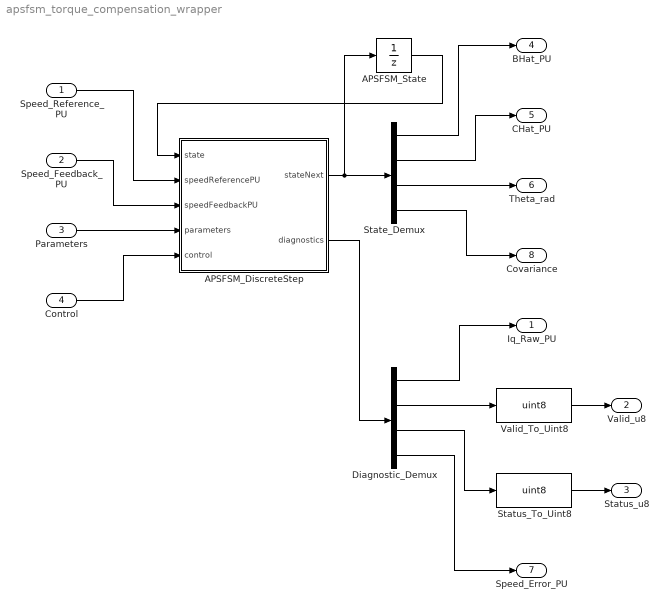
== matlab function apsfsm_torque_compensation_wrapper/APSFSM_DiscreteStep ==
function [stateNext, diagnostics] = APSFSM_DiscreteStep(state, speedReferencePU, speedFeedbackPU, parameters, control)
%#codegen
[stateNext, diagnostics] = apsfsmTorqueCompensationStep(state, speedReferencePU, speedFeedbackPU, parameters, control);
end

/*
 * Academic License - for use in teaching, academic research, and meeting
 * course requirements at degree granting institutions only.  Not for
 * government, commercial, or other organizational use.
 *
 * File: apsfsm_torque_compensation_wrapper.c
 *
 * Code generated for Simulink model 'apsfsm_torque_compensation_wrapper'.
 *
 * Model version                  : 1.2
 * Simulink Coder version         : 26.1 (R2026a) 20-Nov-2025
 * C/C++ source code generated on : Thu Aug 27 18:26:27 2026
 *
 * Target selection: ert.tlc
 * Embedded hardware selection: ARM Compatible->ARM Cortex
 * Code generation objectives: Unspecified
 * Validation result: Not run
 */

#include "apsfsm_torque_compensation_wrapper.h"
#include "rt_nonfinite.h"
#include <math.h>
#include "rtwtypes.h"

/* Block states (default storage) */
DW_apsfsm_torque_compensation_wrapper_T apsfsm_torque_compensation_wrapper_DW;

/* External inputs (root inport signals with default storage) */
ExtU_apsfsm_torque_compensation_wrapper_T apsfsm_torque_compensation_wrapper_U;

/* External outputs (root outports fed by signals with default storage) */
ExtY_apsfsm_torque_compensation_wrapper_T apsfsm_torque_compensation_wrapper_Y;

/* Real-time model */
static RT_MODEL_apsfsm_torque_compensation_wrapper_T
  apsfsm_torque_compensation_wrapper_M_;
RT_MODEL_apsfsm_torque_compensation_wrapper_T *const
  apsfsm_torque_compensation_wrapper_M = &apsfsm_torque_compensation_wrapper_M_;

/* Model step function */
void apsfsm_torque_compensation_wrapper_step(void)
{
  int32_T rtb_diagnostics_idx_1;
  int32_T rtb_diagnostics_idx_2;
  real32_T candidateMagnitude;
  real32_T coefficientMagnitude;
  real32_T covariance;
  real32_T iqRaw;
  real32_T minimumCovariance;
  real32_T phase;
  real32_T resetState_idx_0;
  real32_T resetState_idx_1;
  real32_T resetState_idx_2;
  real32_T resetState_idx_3;
  real32_T thetaMech;
  boolean_T controlDiscrete;

  /* MATLAB Function: '<Root>/APSFSM_DiscreteStep' */
  resetState_idx_0 = 0.0F;

  /* Outport: '<Root>/Iq_Raw_PU' incorporates:
   *  MATLAB Function: '<Root>/APSFSM_DiscreteStep'
   */
  apsfsm_torque_compensation_wrapper_Y.Iq_Raw_PU = 0.0F;

  /* MATLAB Function: '<Root>/APSFSM_DiscreteStep' */
  resetState_idx_1 = 0.0F;
  rtb_diagnostics_idx_1 = 0;
  resetState_idx_2 = 0.0F;
  rtb_diagnostics_idx_2 = 0;
  resetState_idx_3 = 0.0F;

  /* Outport: '<Root>/Speed_Error_PU' incorporates:
   *  MATLAB Function: '<Root>/APSFSM_DiscreteStep'
   */
  apsfsm_torque_compensation_wrapper_Y.Speed_Error_PU = 0.0F;

  /* MATLAB Function: '<Root>/APSFSM_DiscreteStep' incorporates:
   *  Inport: '<Root>/Control'
   *  Inport: '<Root>/Parameters'
   *  Inport: '<Root>/Speed_Feedback_PU'
   *  Inport: '<Root>/Speed_Reference_PU'
   *  UnitDelay: '<Root>/APSFSM_State'
   */
  if (rtIsInfF(apsfsm_torque_compensation_wrapper_U.Parameters[0]) || rtIsNaNF
      (apsfsm_torque_compensation_wrapper_U.Parameters[0]) || (rtIsInfF
       (apsfsm_torque_compensation_wrapper_U.Parameters[1]) || rtIsNaNF
       (apsfsm_torque_compensation_wrapper_U.Parameters[1]) || (rtIsInfF
        (apsfsm_torque_compensation_wrapper_U.Parameters[2]) || rtIsNaNF
        (apsfsm_torque_compensation_wrapper_U.Parameters[2]) || (rtIsInfF
         (apsfsm_torque_compensation_wrapper_U.Parameters[3]) || rtIsNaNF
         (apsfsm_torque_compensation_wrapper_U.Parameters[3]) || (rtIsInfF
          (apsfsm_torque_compensation_wrapper_U.Parameters[4]) || rtIsNaNF
          (apsfsm_torque_compensation_wrapper_U.Parameters[4]))))) ||
      (!(apsfsm_torque_compensation_wrapper_U.Parameters[0] > 0.0F) ||
       (!(apsfsm_torque_compensation_wrapper_U.Parameters[1] > 0.0F) ||
        (!(apsfsm_torque_compensation_wrapper_U.Parameters[3] > 0.0F) ||
         (!(apsfsm_torque_compensation_wrapper_U.Parameters[3] < 1.0F) ||
          !(apsfsm_torque_compensation_wrapper_U.Parameters[4] > 0.0F)))))) {
    rtb_diagnostics_idx_2 = 4;
  } else {
    minimumCovariance = 0.5F * apsfsm_torque_compensation_wrapper_U.Parameters[1]
      * apsfsm_torque_compensation_wrapper_U.Parameters[1];
    if (rtIsInfF(minimumCovariance) || rtIsNaNF(minimumCovariance)) {
      rtb_diagnostics_idx_2 = 4;
    } else if (minimumCovariance <= 0.0F) {
      rtb_diagnostics_idx_2 = 4;
    } else {
      resetState_idx_3 = minimumCovariance;
      if ((apsfsm_torque_compensation_wrapper_U.Control[0] == 0.0F) ||
          (apsfsm_torque_compensation_wrapper_U.Control[0] == 1.0F)) {
        if ((apsfsm_torque_compensation_wrapper_U.Control[1] == 0.0F) ||
            (apsfsm_torque_compensation_wrapper_U.Control[1] == 1.0F)) {
          controlDiscrete = ((apsfsm_torque_compensation_wrapper_U.Control[2] ==
                              0.0F) ||
                             (apsfsm_torque_compensation_wrapper_U.Control[2] ==
                              1.0F));
        } else {
          controlDiscrete = false;
        }
      } else {
        controlDiscrete = false;
      }

      if (rtIsInfF(apsfsm_torque_compensation_wrapper_U.Control[0]) || rtIsNaNF
          (apsfsm_torque_compensation_wrapper_U.Control[0]) || (rtIsInfF
           (apsfsm_torque_compensation_wrapper_U.Control[1]) || rtIsNaNF
           (apsfsm_torque_compensation_wrapper_U.Control[1]) || (rtIsInfF
            (apsfsm_torque_compensation_wrapper_U.Control[2]) || rtIsNaNF
            (apsfsm_torque_compensation_wrapper_U.Control[2]))) ||
          !controlDiscrete) {
        rtb_diagnostics_idx_2 = 5;
      } else if (rtIsInfF
                 (apsfsm_torque_compensation_wrapper_U.Speed_Reference_PU) ||
                 rtIsNaNF
                 (apsfsm_torque_compensation_wrapper_U.Speed_Reference_PU)) {
        rtb_diagnostics_idx_2 = 5;
      } else if (rtIsInfF(apsfsm_torque_compensation_wrapper_U.Speed_Feedback_PU)
                 || rtIsNaNF
                 (apsfsm_torque_compensation_wrapper_U.Speed_Feedback_PU)) {
        rtb_diagnostics_idx_2 = 5;
      } else if (!(apsfsm_torque_compensation_wrapper_U.Control[2] == 1.0F) &&
                 !(apsfsm_torque_compensation_wrapper_U.Control[0] == 0.0F)) {
        covariance = apsfsm_torque_compensation_wrapper_DW.APSFSM_State_DSTATE[3];
        controlDiscrete = (!rtIsInfF
                           (apsfsm_torque_compensation_wrapper_DW.APSFSM_State_DSTATE
                            [0]) && !rtIsNaNF
                           (apsfsm_torque_compensation_wrapper_DW.APSFSM_State_DSTATE
                            [0]) && (!rtIsInfF
          (apsfsm_torque_compensation_wrapper_DW.APSFSM_State_DSTATE[1]) &&
          !rtIsNaNF(apsfsm_torque_compensation_wrapper_DW.APSFSM_State_DSTATE[1])
          && (!rtIsInfF
              (apsfsm_torque_compensation_wrapper_DW.APSFSM_State_DSTATE[2]) &&
              !rtIsNaNF
              (apsfsm_torque_compensation_wrapper_DW.APSFSM_State_DSTATE[2]) &&
              (!rtIsInfF
               (apsfsm_torque_compensation_wrapper_DW.APSFSM_State_DSTATE[3]) &&
               !rtIsNaNF
               (apsfsm_torque_compensation_wrapper_DW.APSFSM_State_DSTATE[3])))));
        if (controlDiscrete &&
            (apsfsm_torque_compensation_wrapper_DW.APSFSM_State_DSTATE[3] >=
             0.0F) &&
            (apsfsm_torque_compensation_wrapper_DW.APSFSM_State_DSTATE[3] <
             minimumCovariance)) {
          covariance = minimumCovariance;
        }

        coefficientMagnitude = sqrtf
          (apsfsm_torque_compensation_wrapper_DW.APSFSM_State_DSTATE[0] *
           apsfsm_torque_compensation_wrapper_DW.APSFSM_State_DSTATE[0] +
           apsfsm_torque_compensation_wrapper_DW.APSFSM_State_DSTATE[1] *
           apsfsm_torque_compensation_wrapper_DW.APSFSM_State_DSTATE[1]);
        if (!controlDiscrete || (!(covariance >= minimumCovariance) || (rtIsInfF
              (coefficientMagnitude) || rtIsNaNF(coefficientMagnitude) ||
              !(coefficientMagnitude <=
                apsfsm_torque_compensation_wrapper_U.Parameters[4] * 1.00001F))))
        {
          rtb_diagnostics_idx_2 = 5;
        } else {
          thetaMech = apsfsm_torque_compensation_wrapper_DW.APSFSM_State_DSTATE
            [2] - floorf
            (apsfsm_torque_compensation_wrapper_DW.APSFSM_State_DSTATE[2] /
             6.2831855F) * 6.2831855F;
          if (thetaMech >= 6.2831855F) {
            thetaMech = 0.0F;
          } else if (thetaMech < 0.0F) {
            thetaMech += 6.2831855F;
          }

          coefficientMagnitude =
            apsfsm_torque_compensation_wrapper_U.Speed_Reference_PU -
            apsfsm_torque_compensation_wrapper_U.Speed_Feedback_PU;
          iqRaw = apsfsm_torque_compensation_wrapper_DW.APSFSM_State_DSTATE[0] *
            sinf(thetaMech) +
            apsfsm_torque_compensation_wrapper_DW.APSFSM_State_DSTATE[1] * cosf
            (thetaMech);
          thetaMech += 0.0005F *
            apsfsm_torque_compensation_wrapper_U.Parameters[0] *
            apsfsm_torque_compensation_wrapper_U.Speed_Feedback_PU;
          thetaMech -= floorf(thetaMech / 6.2831855F) * 6.2831855F;
          if (thetaMech >= 6.2831855F) {
            thetaMech = 0.0F;
          } else if (thetaMech < 0.0F) {
            thetaMech += 6.2831855F;
          }

          if (apsfsm_torque_compensation_wrapper_U.Control[1] == 1.0F) {
            minimumCovariance =
              apsfsm_torque_compensation_wrapper_DW.APSFSM_State_DSTATE[0];
            phase = apsfsm_torque_compensation_wrapper_DW.APSFSM_State_DSTATE[1];
          } else {
            covariance = apsfsm_torque_compensation_wrapper_U.Parameters[3] *
              covariance + minimumCovariance;
            if (covariance < minimumCovariance) {
              covariance = minimumCovariance;
            }

            minimumCovariance =
              (apsfsm_torque_compensation_wrapper_U.Parameters[2] + 3.1415927F)
              - floorf((apsfsm_torque_compensation_wrapper_U.Parameters[2] +
                        3.1415927F) / 6.2831855F) * 6.2831855F;
            if (minimumCovariance >= 6.2831855F) {
              minimumCovariance = 0.0F;
            } else if (minimumCovariance < 0.0F) {
              minimumCovariance += 6.2831855F;
            }

            phase = (minimumCovariance - 3.1415927F) + thetaMech;
            minimumCovariance = apsfsm_torque_compensation_wrapper_U.Parameters
              [1] * sinf(phase) * coefficientMagnitude / covariance +
              apsfsm_torque_compensation_wrapper_DW.APSFSM_State_DSTATE[0];
            phase = apsfsm_torque_compensation_wrapper_U.Parameters[1] * cosf
              (phase) * coefficientMagnitude / covariance +
              apsfsm_torque_compensation_wrapper_DW.APSFSM_State_DSTATE[1];
            candidateMagnitude = sqrtf(minimumCovariance * minimumCovariance +
              phase * phase);
            if (candidateMagnitude >
                apsfsm_torque_compensation_wrapper_U.Parameters[4]) {
              candidateMagnitude =
                apsfsm_torque_compensation_wrapper_U.Parameters[4] /
                candidateMagnitude;
              minimumCovariance *= candidateMagnitude;
              phase *= candidateMagnitude;
            }
          }

          if (rtIsInfF(iqRaw) || rtIsNaNF(iqRaw) || (rtIsInfF
               (coefficientMagnitude) || rtIsNaNF(coefficientMagnitude) ||
               (rtIsInfF(thetaMech) || rtIsNaNF(thetaMech) || (rtIsInfF
                 (minimumCovariance) || rtIsNaNF(minimumCovariance) || (rtIsInfF
                  (phase) || rtIsNaNF(phase) || (rtIsInfF(covariance) ||
                   rtIsNaNF(covariance))))))) {
            rtb_diagnostics_idx_2 = 5;
          } else {
            resetState_idx_0 = minimumCovariance;
            resetState_idx_1 = phase;
            resetState_idx_2 = thetaMech;
            resetState_idx_3 = covariance;

            /* Outport: '<Root>/Iq_Raw_PU' */
            apsfsm_torque_compensation_wrapper_Y.Iq_Raw_PU = iqRaw;
            rtb_diagnostics_idx_1 = 1;
            rtb_diagnostics_idx_2 = 2;

            /* Outport: '<Root>/Speed_Error_PU' */
            apsfsm_torque_compensation_wrapper_Y.Speed_Error_PU =
              coefficientMagnitude;
          }
        }
      }
    }
  }

  apsfsm_torque_compensation_wrapper_DW.APSFSM_State_DSTATE[0] =
    resetState_idx_0;
  apsfsm_torque_compensation_wrapper_DW.APSFSM_State_DSTATE[1] =
    resetState_idx_1;
  apsfsm_torque_compensation_wrapper_DW.APSFSM_State_DSTATE[2] =
    resetState_idx_2;
  apsfsm_torque_compensation_wrapper_DW.APSFSM_State_DSTATE[3] =
    resetState_idx_3;

  /* Outport: '<Root>/BHat_PU' incorporates:
   *  UnitDelay: '<Root>/APSFSM_State'
   */
  apsfsm_torque_compensation_wrapper_Y.BHat_PU =
    apsfsm_torque_compensation_wrapper_DW.APSFSM_State_DSTATE[0];

  /* Outport: '<Root>/CHat_PU' incorporates:
   *  UnitDelay: '<Root>/APSFSM_State'
   */
  apsfsm_torque_compensation_wrapper_Y.CHat_PU =
    apsfsm_torque_compensation_wrapper_DW.APSFSM_State_DSTATE[1];

  /* Outport: '<Root>/Theta_rad' incorporates:
   *  UnitDelay: '<Root>/APSFSM_State'
   */
  apsfsm_torque_compensation_wrapper_Y.Theta_rad =
    apsfsm_torque_compensation_wrapper_DW.APSFSM_State_DSTATE[2];

  /* Outport: '<Root>/Covariance' incorporates:
   *  UnitDelay: '<Root>/APSFSM_State'
   */
  apsfsm_torque_compensation_wrapper_Y.Covariance =
    apsfsm_torque_compensation_wrapper_DW.APSFSM_State_DSTATE[3];

  /* Outport: '<Root>/Valid_u8' incorporates:
   *  DataTypeConversion: '<Root>/Valid_To_Uint8'
   */
  apsfsm_torque_compensation_wrapper_Y.Valid_u8 = (uint8_T)rtb_diagnostics_idx_1;

  /* Outport: '<Root>/Status_u8' incorporates:
   *  DataTypeConversion: '<Root>/Status_To_Uint8'
   */
  apsfsm_torque_compensation_wrapper_Y.Status_u8 = (uint8_T)
    rtb_diagnostics_idx_2;
}
